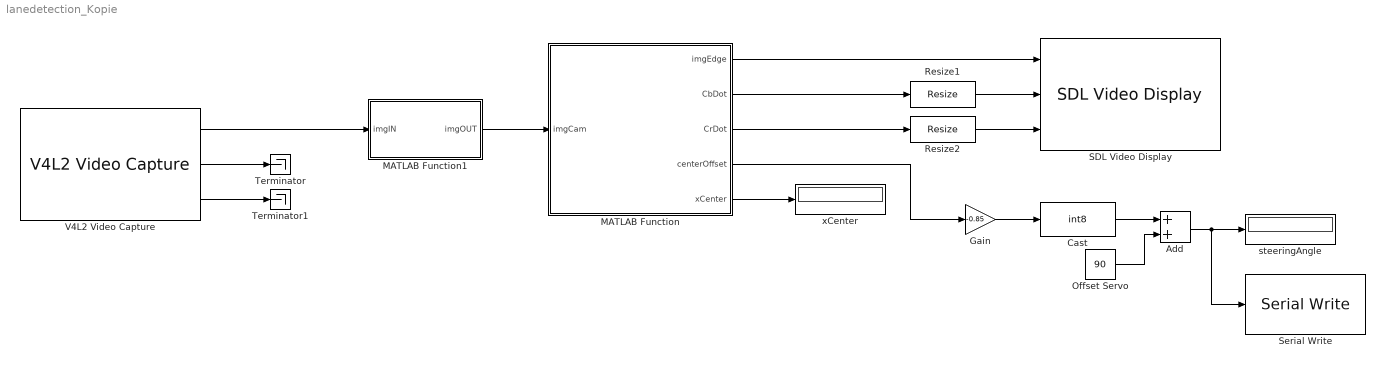
== matlab function lanedetection_Kopie/MATLAB Function1 ==
function imgOUT   = imgROI(imgIN)

    % imgIN Array von 160x120
    % rectangle('Position',[x,y,w,h])
    
    imgOUT = imgIN(1:160,71:100);

end

== matlab function lanedetection_Kopie/MATLAB Function ==
function [imgEdge, CbDot, CrDot, centerOffset, xCenter]  = lanedetection(imgCam)

    threshold = 60;

    % create laplacian filter
    k = [1 2 1; 0 0 0; -1 -2 -1];
    % run sobel
    V = conv2(double(imgCam), k', 'same');
    % filter edges
    imgEdges = uint8((V > threshold) * 255);
    
    % Ab hier für Spurberechnung irrelevant
    
    
    
    % coordinates of all detected objects
    [x, y] = find(imgEdges);
    
    % detect the center of all objects
    xCenter = round(mean(x));
    yCenter = round(mean(y));
    
    % create vector xx and yy for an area around the center of all objects
    xx = max(1, xCenter-2):min(xCenter+2, size(imgEdges, 1));
    yy = max(1, yCenter-2):min(yCenter+2, size(imgEdges, 2));
    
    % create new array with the size of "bw" and fill it with "0"
    bwdot = zeros(size(imgEdges), 'uint8');
    
    % if there is something detected at x and y...
    if ~isempty(x) && ~isempty(y)
        % ...mark the area around the center
        bwdot(xx, yy) = 255;
    % if nothing gets detected...
    else
        bwdot(xx, yy) = 0;
    end
    
    % add the marked area around the center to the array justRed
    imgEdge = imgEdges + bwdot;
    CbDot = bwdot;
    CrDot = bwdot;
    centerOffset = (xCenter - 80);
end

/*
 * Academic License - for use in teaching, academic research, and meeting
 * course requirements at degree granting institutions only.  Not for
 * government, commercial, or other organizational use.
 *
 * File: lanedetection_Kopie.c
 *
 * Code generated for Simulink model 'lanedetection_Kopie'.
 *
 * Model version                  : 1.167
 * Simulink Coder version         : 8.14 (R2018a) 06-Feb-2018
 * C/C++ source code generated on : Fri Apr 12 12:20:22 2019
 *
 * Target selection: ert.tlc
 * Embedded hardware selection: ARM Compatible->ARM Cortex
 * Code generation objectives: Unspecified
 * Validation result: Not run
 */

#include "lanedetection_Kopie.h"
#include "lanedetection_Kopie_private.h"
#include "lanedetection_Kopie_dt.h"

/* Block signals (default storage) */
B_lanedetection_Kopie_T lanedetection_Kopie_B;

/* Block states (default storage) */
DW_lanedetection_Kopie_T lanedetection_Kopie_DW;

/* Real-time model */
RT_MODEL_lanedetection_Kopie_T lanedetection_Kopie_M_;
RT_MODEL_lanedetection_Kopie_T *const lanedetection_Kopie_M =
  &lanedetection_Kopie_M_;

/* Forward declaration for local functions */
static void lanedetection_Kopie_conv2(const real_T a[4800], const real_T b[9],
  real_T c[4800]);
static real_T lanedetection_Kopie_mean(const real_T x_data[], const int32_T
  *x_size);
static void SystemProp_matlabCodegenSetAn_d(codertarget_linux_blocks_SDLV_T *obj,
  boolean_T value);
static void lanedetect_SystemCore_release_d(const
  codertarget_linux_blocks_SDLV_T *obj);
static void lanedetecti_SystemCore_delete_d(const
  codertarget_linux_blocks_SDLV_T *obj);
static void matlabCodegenHandle_matlabCod_d(codertarget_linux_blocks_SDLV_T *obj);
static void SystemProp_matlabCodegenSetAnyP(codertarget_raspi_internal_SC_T *obj,
  boolean_T value);
static void lanedetectio_SystemCore_release(const
  codertarget_raspi_internal_SC_T *obj);
static void lanedetection_SystemCore_delete(const
  codertarget_raspi_internal_SC_T *obj);
static void matlabCodegenHandle_matlabCodeg(codertarget_raspi_internal_SC_T *obj);

/* Function for MATLAB Function: '<Root>/MATLAB Function' */
static void lanedetection_Kopie_conv2(const real_T a[4800], const real_T b[9],
  real_T c[4800])
{
  int32_T lastColA;
  int32_T iC;
  int32_T iA;
  int32_T iB;
  int32_T aidx;
  int32_T cidx;
  int32_T j;
  int32_T k;
  int32_T r;
  memset(&c[0], 0, 4800U * sizeof(real_T));
  for (j = 0; j < 3; j++) {
    if (j + 29 < 30) {
      lastColA = 29;
    } else {
      lastColA = 30 - j;
    }

    for (k = (j < 1); k <= lastColA; k++) {
      iC = j + k;
      if (!(iC > 1)) {
        iC = 1;
      }

      iC = (iC - 1) * 160;
      iA = k * 160;
      iB = j * 3;
      aidx = iA + 1;
      cidx = iC;
      for (r = 1; r < 160; r++) {
        c[cidx] += b[iB] * a[aidx];
        aidx++;
        cidx++;
      }

      iB++;
      aidx = iA;
      cidx = iC;
      for (r = 1; r < 161; r++) {
        c[cidx] += b[iB] * a[aidx];
        aidx++;
        cidx++;
      }

      iB++;
      cidx = iC + 1;
      aidx = iA;
      for (r = 1; r < 160; r++) {
        c[cidx] += b[iB] * a[aidx];
        aidx++;
        cidx++;
      }
    }
  }
}

/* Function for MATLAB Function: '<Root>/MATLAB Function' */
static real_T lanedetection_Kopie_mean(const real_T x_data[], const int32_T
  *x_size)
{
  real_T b_y;
  int32_T k;
  if (*x_size == 0) {
    b_y = 0.0;
  } else {
    b_y = x_data[0];
    for (k = 2; k <= *x_size; k++) {
      b_y += x_data[k - 1];
    }
  }

  return b_y / (real_T)*x_size;
}

real_T rt_roundd_snf(real_T u)
{
  real_T y;
  if (fabs(u) < 4.503599627370496E+15) {
    if (u >= 0.5) {
      y = floor(u + 0.5);
    } else if (u > -0.5) {
      y = u * 0.0;
    } else {
      y = ceil(u - 0.5);
    }
  } else {
    y = u;
  }

  return y;
}

static void SystemProp_matlabCodegenSetAn_d(codertarget_linux_blocks_SDLV_T *obj,
  boolean_T value)
{
  obj->matlabCodegenIsDeleted = value;
}

static void lanedetect_SystemCore_release_d(const
  codertarget_linux_blocks_SDLV_T *obj)
{
  if ((obj->isInitialized == 1) && obj->isSetupComplete) {
    MW_SDL_videoDisplayTerminate(0, 0);
  }
}

static void lanedetecti_SystemCore_delete_d(const
  codertarget_linux_blocks_SDLV_T *obj)
{
  lanedetect_SystemCore_release_d(obj);
}

static void matlabCodegenHandle_matlabCod_d(codertarget_linux_blocks_SDLV_T *obj)
{
  if (!obj->matlabCodegenIsDeleted) {
    SystemProp_matlabCodegenSetAn_d(obj, true);
    lanedetecti_SystemCore_delete_d(obj);
  }
}

static void SystemProp_matlabCodegenSetAnyP(codertarget_raspi_internal_SC_T *obj,
  boolean_T value)
{
  obj->matlabCodegenIsDeleted = value;
}

static void lanedetectio_SystemCore_release(const
  codertarget_raspi_internal_SC_T *obj)
{
  if ((obj->isInitialized == 1) && obj->isSetupComplete) {
    MW_SCI_Close(obj->MW_SCIHANDLE);
  }
}

static void lanedetection_SystemCore_delete(const
  codertarget_raspi_internal_SC_T *obj)
{
  lanedetectio_SystemCore_release(obj);
}

static void matlabCodegenHandle_matlabCodeg(codertarget_raspi_internal_SC_T *obj)
{
  if (!obj->matlabCodegenIsDeleted) {
    SystemProp_matlabCodegenSetAnyP(obj, true);
    lanedetection_SystemCore_delete(obj);
  }
}

/* Model step function */
void lanedetection_Kopie_step(void)
{
  int32_T apnd;
  int32_T cdiff;
  int32_T b_nm1d2;
  int32_T b_k;
  static const real_T f[9] = { 1.0, 2.0, 1.0, 0.0, 0.0, 0.0, -1.0, -2.0, -1.0 };

  uint8_T TxDataLocChar;
  boolean_T exitg1;
  boolean_T guard1 = false;

  /* S-Function (v4l2_video_capture_sfcn): '<Root>/V4L2 Video Capture' */
  MW_videoCaptureOutput(lanedetection_Kopie_ConstP.V4L2VideoCapture_p1,
                        lanedetection_Kopie_B.V4L2VideoCapture_o1,
                        lanedetection_Kopie_B.V4L2VideoCapture_o2,
                        lanedetection_Kopie_B.V4L2VideoCapture_o3);

  /* MATLAB Function: '<Root>/MATLAB Function1' */
  for (apnd = 0; apnd < 30; apnd++) {
    memcpy(&lanedetection_Kopie_B.imgOUT[apnd * 160],
           &lanedetection_Kopie_B.V4L2VideoCapture_o1[apnd * 160 + 11200], 160U *
           sizeof(uint8_T));
  }

  /* End of MATLAB Function: '<Root>/MATLAB Function1' */

  /* MATLAB Function: '<Root>/MATLAB Function' */
  for (apnd = 0; apnd < 4800; apnd++) {
    lanedetection_Kopie_B.rtb_imgOUT_m[apnd] = lanedetection_Kopie_B.imgOUT[apnd];
  }

  lanedetection_Kopie_conv2(lanedetection_Kopie_B.rtb_imgOUT_m, f,
    lanedetection_Kopie_B.dv0);
  for (apnd = 0; apnd < 4800; apnd++) {
    lanedetection_Kopie_B.imgEdge[apnd] = (uint8_T)
      ((lanedetection_Kopie_B.dv0[apnd] > 60.0) * 255U);
  }

  lanedetection_Kopie_B.idx = 0;
  lanedetection_Kopie_B.ii = 1;
  lanedetection_Kopie_B.jj = 1;
  exitg1 = false;
  while ((!exitg1) && (lanedetection_Kopie_B.jj <= 30)) {
    guard1 = false;
    if (lanedetection_Kopie_B.imgEdge[((lanedetection_Kopie_B.jj - 1) * 160 +
         lanedetection_Kopie_B.ii) - 1] != 0) {
      lanedetection_Kopie_B.idx++;
      lanedetection_Kopie_B.i_data[lanedetection_Kopie_B.idx - 1] =
        lanedetection_Kopie_B.ii;
      lanedetection_Kopie_B.j_data[lanedetection_Kopie_B.idx - 1] = (int8_T)
        lanedetection_Kopie_B.jj;
      if (lanedetection_Kopie_B.idx >= 4800) {
        exitg1 = true;
      } else {
        guard1 = true;
      }
    } else {
      guard1 = true;
    }

    if (guard1) {
      lanedetection_Kopie_B.ii++;
      if (lanedetection_Kopie_B.ii > 160) {
        lanedetection_Kopie_B.ii = 1;
        lanedetection_Kopie_B.jj++;
      }
    }
  }

  if (1 > lanedetection_Kopie_B.idx) {
    lanedetection_Kopie_B.idx = 0;
    lanedetection_Kopie_B.ii = 0;
  } else {
    lanedetection_Kopie_B.ii = lanedetection_Kopie_B.idx;
  }

  cdiff = lanedetection_Kopie_B.idx;
  for (apnd = 0; apnd < lanedetection_Kopie_B.idx; apnd++) {
    lanedetection_Kopie_B.x_data[apnd] = lanedetection_Kopie_B.i_data[apnd];
  }

  b_nm1d2 = lanedetection_Kopie_B.ii;
  for (apnd = 0; apnd < lanedetection_Kopie_B.ii; apnd++) {
    lanedetection_Kopie_B.y_data[apnd] = lanedetection_Kopie_B.j_data[apnd];
  }

  lanedetection_Kopie_B.xCenter = rt_roundd_snf(lanedetection_Kopie_mean
    (lanedetection_Kopie_B.x_data, &cdiff));
  lanedetection_Kopie_B.yCenter = rt_roundd_snf(lanedetection_Kopie_mean
    (lanedetection_Kopie_B.y_data, &b_nm1d2));
  if ((1.0 > lanedetection_Kopie_B.xCenter - 2.0) || rtIsNaN
      (lanedetection_Kopie_B.xCenter - 2.0)) {
    lanedetection_Kopie_B.maxval = 1.0;
  } else {
    lanedetection_Kopie_B.maxval = lanedetection_Kopie_B.xCenter - 2.0;
  }

  if (lanedetection_Kopie_B.xCenter + 2.0 < 160.0) {
    lanedetection_Kopie_B.minval = lanedetection_Kopie_B.xCenter + 2.0;
  } else {
    lanedetection_Kopie_B.minval = 160.0;
  }

  if (lanedetection_Kopie_B.minval < lanedetection_Kopie_B.maxval) {
    lanedetection_Kopie_B.jj = 0;
  } else if (lanedetection_Kopie_B.maxval == lanedetection_Kopie_B.maxval) {
    cdiff = (int32_T)((real32_T)lanedetection_Kopie_B.minval - (real32_T)
                      lanedetection_Kopie_B.maxval);
    lanedetection_Kopie_B.jj = cdiff + 1;
    for (apnd = 0; apnd <= cdiff; apnd++) {
      lanedetection_Kopie_B.xx_data[apnd] = lanedetection_Kopie_B.maxval +
        (real_T)apnd;
    }
  } else {
    lanedetection_Kopie_B.jj = (int32_T)floor((lanedetection_Kopie_B.minval -
      lanedetection_Kopie_B.maxval) + 0.5);
    apnd = (int32_T)lanedetection_Kopie_B.maxval + lanedetection_Kopie_B.jj;
    cdiff = apnd - (int32_T)lanedetection_Kopie_B.minval;
    if ((int32_T)lanedetection_Kopie_B.maxval > (int32_T)
        lanedetection_Kopie_B.minval) {
      lanedetection_Kopie_B.nm1d2 = (int32_T)lanedetection_Kopie_B.maxval;
    } else {
      lanedetection_Kopie_B.nm1d2 = (int32_T)lanedetection_Kopie_B.minval;
    }

    if (fabs((real_T)cdiff) < 4.4408920985006262E-16 * (real_T)
        lanedetection_Kopie_B.nm1d2) {
      lanedetection_Kopie_B.jj++;
      apnd = (int32_T)lanedetection_Kopie_B.minval;
    } else if (cdiff > 0) {
      apnd = ((int32_T)lanedetection_Kopie_B.maxval + lanedetection_Kopie_B.jj)
        - 1;
    } else {
      lanedetection_Kopie_B.jj++;
    }

    if (lanedetection_Kopie_B.jj >= 0) {
      cdiff = lanedetection_Kopie_B.jj - 1;
    } else {
      cdiff = -1;
    }

    lanedetection_Kopie_B.jj = cdiff + 1;
    if (cdiff + 1 > 0) {
      lanedetection_Kopie_B.xx_data[0] = lanedetection_Kopie_B.maxval;
      if (cdiff + 1 > 1) {
        lanedetection_Kopie_B.xx_data[cdiff] = apnd;
        lanedetection_Kopie_B.nm1d2 = cdiff / 2;
        for (b_nm1d2 = 1; b_nm1d2 < lanedetection_Kopie_B.nm1d2; b_nm1d2++) {
          lanedetection_Kopie_B.xx_data[b_nm1d2] = lanedetection_Kopie_B.maxval
            + (real_T)b_nm1d2;
          lanedetection_Kopie_B.xx_data[cdiff - b_nm1d2] = apnd - b_nm1d2;
        }

        if (lanedetection_Kopie_B.nm1d2 << 1 == cdiff) {
          lanedetection_Kopie_B.xx_data[lanedetection_Kopie_B.nm1d2] =
            (lanedetection_Kopie_B.maxval + (real_T)apnd) / 2.0;
        } else {
          lanedetection_Kopie_B.xx_data[lanedetection_Kopie_B.nm1d2] =
            lanedetection_Kopie_B.maxval + (real_T)lanedetection_Kopie_B.nm1d2;
          lanedetection_Kopie_B.xx_data[lanedetection_Kopie_B.nm1d2 + 1] = apnd
            - lanedetection_Kopie_B.nm1d2;
        }
      }
    }
  }

  if ((1.0 > lanedetection_Kopie_B.yCenter - 2.0) || rtIsNaN
      (lanedetection_Kopie_B.yCenter - 2.0)) {
    lanedetection_Kopie_B.maxval = 1.0;
  } else {
    lanedetection_Kopie_B.maxval = lanedetection_Kopie_B.yCenter - 2.0;
  }

  if (lanedetection_Kopie_B.yCenter + 2.0 < 30.0) {
    lanedetection_Kopie_B.yCenter += 2.0;
  } else {
    lanedetection_Kopie_B.yCenter = 30.0;
  }

  if (lanedetection_Kopie_B.yCenter < lanedetection_Kopie_B.maxval) {
    lanedetection_Kopie_B.nm1d2 = 0;
  } else if (lanedetection_Kopie_B.maxval == lanedetection_Kopie_B.maxval) {
    cdiff = (int32_T)((real32_T)lanedetection_Kopie_B.yCenter - (real32_T)
                      lanedetection_Kopie_B.maxval);
    lanedetection_Kopie_B.nm1d2 = cdiff + 1;
    for (apnd = 0; apnd <= cdiff; apnd++) {
      lanedetection_Kopie_B.b_y_data[apnd] = lanedetection_Kopie_B.maxval +
        (real_T)apnd;
    }
  } else {
    apnd = (int32_T)floor((lanedetection_Kopie_B.yCenter -
      lanedetection_Kopie_B.maxval) + 0.5);
    cdiff = (int32_T)lanedetection_Kopie_B.maxval + apnd;
    lanedetection_Kopie_B.nm1d2 = cdiff - (int32_T)lanedetection_Kopie_B.yCenter;
    if ((int32_T)lanedetection_Kopie_B.maxval > (int32_T)
        lanedetection_Kopie_B.yCenter) {
      b_nm1d2 = (int32_T)lanedetection_Kopie_B.maxval;
    } else {
      b_nm1d2 = (int32_T)lanedetection_Kopie_B.yCenter;
    }

    if (fabs((real_T)lanedetection_Kopie_B.nm1d2) < 4.4408920985006262E-16 *
        (real_T)b_nm1d2) {
      apnd++;
      cdiff = (int32_T)lanedetection_Kopie_B.yCenter;
    } else if (lanedetection_Kopie_B.nm1d2 > 0) {
      cdiff = ((int32_T)lanedetection_Kopie_B.maxval + apnd) - 1;
    } else {
      apnd++;
    }

    if (apnd >= 0) {
      apnd--;
    } else {
      apnd = -1;
    }

    lanedetection_Kopie_B.nm1d2 = apnd + 1;
    if (apnd + 1 > 0) {
      lanedetection_Kopie_B.b_y_data[0] = lanedetection_Kopie_B.maxval;
      if (apnd + 1 > 1) {
        lanedetection_Kopie_B.b_y_data[apnd] = cdiff;
        b_nm1d2 = apnd / 2;
        for (b_k = 1; b_k < b_nm1d2; b_k++) {
          lanedetection_Kopie_B.b_y_data[b_k] = lanedetection_Kopie_B.maxval +
            (real_T)b_k;
          lanedetection_Kopie_B.b_y_data[apnd - b_k] = cdiff - b_k;
        }

        if (b_nm1d2 << 1 == apnd) {
          lanedetection_Kopie_B.b_y_data[b_nm1d2] =
            (lanedetection_Kopie_B.maxval + (real_T)cdiff) / 2.0;
        } else {
          lanedetection_Kopie_B.b_y_data[b_nm1d2] = lanedetection_Kopie_B.maxval
            + (real_T)b_nm1d2;
          lanedetection_Kopie_B.b_y_data[b_nm1d2 + 1] = cdiff - b_nm1d2;
        }
      }
    }
  }

  memset(&lanedetection_Kopie_B.imgOUT[0], 0, 4800U * sizeof(uint8_T));
  if ((!(lanedetection_Kopie_B.idx == 0)) && (!(lanedetection_Kopie_B.ii == 0)))
  {
    for (apnd = 0; apnd < lanedetection_Kopie_B.jj; apnd++) {
      lanedetection_Kopie_B.b_data[apnd] = (int32_T)
        lanedetection_Kopie_B.xx_data[apnd];
    }

    for (apnd = 0; apnd < lanedetection_Kopie_B.nm1d2; apnd++) {
      lanedetection_Kopie_B.c_data[apnd] = (int32_T)
        lanedetection_Kopie_B.b_y_data[apnd];
    }

    for (apnd = 0; apnd < lanedetection_Kopie_B.nm1d2; apnd++) {
      for (lanedetection_Kopie_B.idx = 0; lanedetection_Kopie_B.idx <
           lanedetection_Kopie_B.jj; lanedetection_Kopie_B.idx++) {
        lanedetection_Kopie_B.imgOUT
          [(lanedetection_Kopie_B.b_data[lanedetection_Kopie_B.idx] + 160 *
            (lanedetection_Kopie_B.c_data[apnd] - 1)) - 1] = MAX_uint8_T;
      }
    }
  } else {
    for (apnd = 0; apnd < lanedetection_Kopie_B.jj; apnd++) {
      lanedetection_Kopie_B.b_data[apnd] = (int32_T)
        lanedetection_Kopie_B.xx_data[apnd];
    }

    for (apnd = 0; apnd < lanedetection_Kopie_B.nm1d2; apnd++) {
      lanedetection_Kopie_B.c_data[apnd] = (int32_T)
        lanedetection_Kopie_B.b_y_data[apnd];
    }

    for (apnd = 0; apnd < lanedetection_Kopie_B.nm1d2; apnd++) {
      for (lanedetection_Kopie_B.idx = 0; lanedetection_Kopie_B.idx <
           lanedetection_Kopie_B.jj; lanedetection_Kopie_B.idx++) {
        lanedetection_Kopie_B.imgOUT
          [(lanedetection_Kopie_B.b_data[lanedetection_Kopie_B.idx] + 160 *
            (lanedetection_Kopie_B.c_data[apnd] - 1)) - 1] = 0U;
      }
    }
  }

  for (apnd = 0; apnd < 4800; apnd++) {
    lanedetection_Kopie_B.idx = (int32_T)((uint32_T)
      lanedetection_Kopie_B.imgEdge[apnd] + lanedetection_Kopie_B.imgOUT[apnd]);
    if ((uint32_T)lanedetection_Kopie_B.idx > 255U) {
      lanedetection_Kopie_B.idx = 255;
    }

    lanedetection_Kopie_B.imgEdge[apnd] = (uint8_T)lanedetection_Kopie_B.idx;
  }

  /* S-Function (svipresize): '<Root>/Resize1' */
  /* use pre-computed weights and index table to perform interpolation */
  lanedetection_Kopie_B.idx = 0;

  /* resize along X-axis direction */
  for (lanedetection_Kopie_B.ii = 0; lanedetection_Kopie_B.ii < 160;
       lanedetection_Kopie_B.ii++) {
    apnd = lanedetection_Kopie_B.ii;
    for (cdiff = 0; cdiff < 30; cdiff++) {
      lanedetection_Kopie_B.jj = (lanedetection_Kopie_B.imgOUT[cdiff * 160 +
        lanedetection_Kopie_B.ii] * 127) << 3;
      lanedetection_Kopie_DW.Resize1_IntBuffer[apnd] = (uint8_T)
        (((lanedetection_Kopie_B.jj & 512U) != 0U) + (lanedetection_Kopie_B.jj >>
          10));
      apnd += 160;
    }
  }

  /* resize along Y-axis direction */
  for (cdiff = 0; cdiff < 30; cdiff++) {
    apnd = cdiff * 160;
    for (lanedetection_Kopie_B.ii = 0; lanedetection_Kopie_B.ii < 160;
         lanedetection_Kopie_B.ii++) {
      lanedetection_Kopie_DW.Resize1_LineBuffer[lanedetection_Kopie_B.ii] =
        lanedetection_Kopie_DW.Resize1_IntBuffer[apnd];
      apnd++;
    }

    for (lanedetection_Kopie_B.ii = 0; lanedetection_Kopie_B.ii < 80;
         lanedetection_Kopie_B.ii++) {
      lanedetection_Kopie_B.jj =
        (lanedetection_Kopie_DW.Resize1_LineBuffer[lanedetection_Kopie_ConstP.pooled2
         [lanedetection_Kopie_B.ii]] *
         lanedetection_Kopie_ConstP.pooled5[lanedetection_Kopie_B.ii]) << 3;
      apnd = lanedetection_Kopie_B.ii + 80;
      lanedetection_Kopie_B.nm1d2 =
        (lanedetection_Kopie_DW.Resize1_LineBuffer[lanedetection_Kopie_ConstP.pooled2
         [apnd]] * lanedetection_Kopie_ConstP.pooled5[apnd]) << 3;
      if ((lanedetection_Kopie_B.jj < 0) && (lanedetection_Kopie_B.nm1d2 <
           MIN_int32_T - lanedetection_Kopie_B.jj)) {
        lanedetection_Kopie_B.jj = MIN_int32_T;
      } else if ((lanedetection_Kopie_B.jj > 0) && (lanedetection_Kopie_B.nm1d2 >
                  MAX_int32_T - lanedetection_Kopie_B.jj)) {
        lanedetection_Kopie_B.jj = MAX_int32_T;
      } else {
        lanedetection_Kopie_B.jj += lanedetection_Kopie_B.nm1d2;
      }

      apnd += 80;
      lanedetection_Kopie_B.nm1d2 =
        (lanedetection_Kopie_DW.Resize1_LineBuffer[lanedetection_Kopie_ConstP.pooled2
         [apnd]] * lanedetection_Kopie_ConstP.pooled5[apnd]) << 3;
      if ((lanedetection_Kopie_B.jj < 0) && (lanedetection_Kopie_B.nm1d2 <
           MIN_int32_T - lanedetection_Kopie_B.jj)) {
        lanedetection_Kopie_B.jj = MIN_int32_T;
      } else if ((lanedetection_Kopie_B.jj > 0) && (lanedetection_Kopie_B.nm1d2 >
                  MAX_int32_T - lanedetection_Kopie_B.jj)) {
        lanedetection_Kopie_B.jj = MAX_int32_T;
      } else {
        lanedetection_Kopie_B.jj += lanedetection_Kopie_B.nm1d2;
      }

      apnd += 80;
      lanedetection_Kopie_B.nm1d2 =
        (lanedetection_Kopie_DW.Resize1_LineBuffer[lanedetection_Kopie_ConstP.pooled2
         [apnd]] * lanedetection_Kopie_ConstP.pooled5[apnd]) << 3;
      if ((lanedetection_Kopie_B.jj < 0) && (lanedetection_Kopie_B.nm1d2 <
           MIN_int32_T - lanedetection_Kopie_B.jj)) {
        lanedetection_Kopie_B.jj = MIN_int32_T;
      } else if ((lanedetection_Kopie_B.jj > 0) && (lanedetection_Kopie_B.nm1d2 >
                  MAX_int32_T - lanedetection_Kopie_B.jj)) {
        lanedetection_Kopie_B.jj = MAX_int32_T;
      } else {
        lanedetection_Kopie_B.jj += lanedetection_Kopie_B.nm1d2;
      }

      apnd = ((lanedetection_Kopie_B.jj & 512U) != 0U) +
        (lanedetection_Kopie_B.jj >> 10);
      if (apnd < 0) {
        apnd = 0;
      } else {
        if (apnd > 255) {
          apnd = 255;
        }
      }

      lanedetection_Kopie_B.Resize1[lanedetection_Kopie_B.idx] = (uint8_T)apnd;
      lanedetection_Kopie_B.idx++;
    }
  }

  /* End of S-Function (svipresize): '<Root>/Resize1' */

  /* S-Function (svipresize): '<Root>/Resize2' incorporates:
   *  MATLAB Function: '<Root>/MATLAB Function'
   */
  /* use pre-computed weights and index table to perform interpolation */
  lanedetection_Kopie_B.idx = 0;

  /* resize along X-axis direction */
  for (lanedetection_Kopie_B.ii = 0; lanedetection_Kopie_B.ii < 160;
       lanedetection_Kopie_B.ii++) {
    apnd = lanedetection_Kopie_B.ii;
    for (cdiff = 0; cdiff < 30; cdiff++) {
      lanedetection_Kopie_B.jj = (lanedetection_Kopie_B.imgOUT[cdiff * 160 +
        lanedetection_Kopie_B.ii] * 127) << 3;
      lanedetection_Kopie_DW.Resize2_IntBuffer[apnd] = (uint8_T)
        (((lanedetection_Kopie_B.jj & 512U) != 0U) + (lanedetection_Kopie_B.jj >>
          10));
      apnd += 160;
    }
  }

  /* resize along Y-axis direction */
  for (cdiff = 0; cdiff < 30; cdiff++) {
    apnd = cdiff * 160;
    for (lanedetection_Kopie_B.ii = 0; lanedetection_Kopie_B.ii < 160;
         lanedetection_Kopie_B.ii++) {
      lanedetection_Kopie_DW.Resize1_LineBuffer[lanedetection_Kopie_B.ii] =
        lanedetection_Kopie_DW.Resize2_IntBuffer[apnd];
      apnd++;
    }

    for (lanedetection_Kopie_B.ii = 0; lanedetection_Kopie_B.ii < 80;
         lanedetection_Kopie_B.ii++) {
      lanedetection_Kopie_B.jj =
        (lanedetection_Kopie_DW.Resize1_LineBuffer[lanedetection_Kopie_ConstP.pooled2
         [lanedetection_Kopie_B.ii]] *
         lanedetection_Kopie_ConstP.pooled5[lanedetection_Kopie_B.ii]) << 3;
      apnd = lanedetection_Kopie_B.ii + 80;
      lanedetection_Kopie_B.nm1d2 =
        (lanedetection_Kopie_DW.Resize1_LineBuffer[lanedetection_Kopie_ConstP.pooled2
         [apnd]] * lanedetection_Kopie_ConstP.pooled5[apnd]) << 3;
      if ((lanedetection_Kopie_B.jj < 0) && (lanedetection_Kopie_B.nm1d2 <
           MIN_int32_T - lanedetection_Kopie_B.jj)) {
        lanedetection_Kopie_B.jj = MIN_int32_T;
      } else if ((lanedetection_Kopie_B.jj > 0) && (lanedetection_Kopie_B.nm1d2 >
                  MAX_int32_T - lanedetection_Kopie_B.jj)) {
        lanedetection_Kopie_B.jj = MAX_int32_T;
      } else {
        lanedetection_Kopie_B.jj += lanedetection_Kopie_B.nm1d2;
      }

      apnd += 80;
      lanedetection_Kopie_B.nm1d2 =
        (lanedetection_Kopie_DW.Resize1_LineBuffer[lanedetection_Kopie_ConstP.pooled2
         [apnd]] * lanedetection_Kopie_ConstP.pooled5[apnd]) << 3;
      if ((lanedetection_Kopie_B.jj < 0) && (lanedetection_Kopie_B.nm1d2 <
           MIN_int32_T - lanedetection_Kopie_B.jj)) {
        lanedetection_Kopie_B.jj = MIN_int32_T;
      } else if ((lanedetection_Kopie_B.jj > 0) && (lanedetection_Kopie_B.nm1d2 >
                  MAX_int32_T - lanedetection_Kopie_B.jj)) {
        lanedetection_Kopie_B.jj = MAX_int32_T;
      } else {
        lanedetection_Kopie_B.jj += lanedetection_Kopie_B.nm1d2;
      }

      apnd += 80;
      lanedetection_Kopie_B.nm1d2 =
        (lanedetection_Kopie_DW.Resize1_LineBuffer[lanedetection_Kopie_ConstP.pooled2
         [apnd]] * lanedetection_Kopie_ConstP.pooled5[apnd]) << 3;
      if ((lanedetection_Kopie_B.jj < 0) && (lanedetection_Kopie_B.nm1d2 <
           MIN_int32_T - lanedetection_Kopie_B.jj)) {
        lanedetection_Kopie_B.jj = MIN_int32_T;
      } else if ((lanedetection_Kopie_B.jj > 0) && (lanedetection_Kopie_B.nm1d2 >
                  MAX_int32_T - lanedetection_Kopie_B.jj)) {
        lanedetection_Kopie_B.jj = MAX_int32_T;
      } else {
        lanedetection_Kopie_B.jj += lanedetection_Kopie_B.nm1d2;
      }

      apnd = ((lanedetection_Kopie_B.jj & 512U) != 0U) +
        (lanedetection_Kopie_B.jj >> 10);
      if (apnd < 0) {
        apnd = 0;
      } else {
        if (apnd > 255) {
          apnd = 255;
        }
      }

      lanedetection_Kopie_B.Resize2[lanedetection_Kopie_B.idx] = (uint8_T)apnd;
      lanedetection_Kopie_B.idx++;
    }
  }

  /* End of S-Function (svipresize): '<Root>/Resize2' */
  /* MATLABSystem: '<S3>/MATLAB System' */
  memcpy(&lanedetection_Kopie_DW.Resize2_IntBuffer[0],
         &lanedetection_Kopie_B.imgEdge[0], 4800U * sizeof(uint8_T));
  memcpy(&lanedetection_Kopie_B.pln2[0], &lanedetection_Kopie_B.Resize1[0],
         2400U * sizeof(uint8_T));
  memcpy(&lanedetection_Kopie_B.pln3[0], &lanedetection_Kopie_B.Resize2[0],
         2400U * sizeof(uint8_T));
  MW_SDL_videoDisplayOutput(lanedetection_Kopie_DW.Resize2_IntBuffer,
    lanedetection_Kopie_B.pln2, lanedetection_Kopie_B.pln3);

  /* DataTypeConversion: '<Root>/Cast' incorporates:
   *  Gain: '<Root>/Gain'
   *  MATLAB Function: '<Root>/MATLAB Function'
   */
  lanedetection_Kopie_B.yCenter = floor((lanedetection_Kopie_B.xCenter - 80.0) *
    lanedetection_Kopie_P.Gain_Gain);
  if (rtIsNaN(lanedetection_Kopie_B.yCenter) || rtIsInf
      (lanedetection_Kopie_B.yCenter)) {
    lanedetection_Kopie_B.yCenter = 0.0;
  } else {
    lanedetection_Kopie_B.yCenter = fmod(lanedetection_Kopie_B.yCenter, 256.0);
  }

  /* Sum: '<Root>/Add' incorporates:
   *  Constant: '<Root>/Offset Servo'
   *  DataTypeConversion: '<Root>/Cast'
   */
  lanedetection_Kopie_B.Add = (int8_T)((lanedetection_Kopie_B.yCenter < 0.0 ?
    (int32_T)(int8_T)-(int8_T)(uint8_T)-lanedetection_Kopie_B.yCenter : (int32_T)
    (int8_T)(uint8_T)lanedetection_Kopie_B.yCenter) +
    lanedetection_Kopie_P.OffsetServo_Value);

  /* MATLABSystem: '<Root>/Serial Write' */
  memcpy((void *)&TxDataLocChar, (void *)&lanedetection_Kopie_B.Add, (uint32_T)
         ((size_t)1 * sizeof(uint8_T)));
  MW_SCI_Transmit(lanedetection_Kopie_DW.obj_n.MW_SCIHANDLE, &TxDataLocChar, 1U);

  /* External mode */
  rtExtModeUploadCheckTrigger(1);

  {                                    /* Sample time: [0.011111111111111112s, 0.0s] */
    rtExtModeUpload(0, lanedetection_Kopie_M->Timing.taskTime0);
  }

  /* signal main to stop simulation */
  {                                    /* Sample time: [0.011111111111111112s, 0.0s] */
    if ((rtmGetTFinal(lanedetection_Kopie_M)!=-1) &&
        !((rtmGetTFinal(lanedetection_Kopie_M)-
           lanedetection_Kopie_M->Timing.taskTime0) >
          lanedetection_Kopie_M->Timing.taskTime0 * (DBL_EPSILON))) {
      rtmSetErrorStatus(lanedetection_Kopie_M, "Simulation finished");
    }

    if (rtmGetStopRequested(lanedetection_Kopie_M)) {
      rtmSetErrorStatus(lanedetection_Kopie_M, "Simulation finished");
    }
  }

  /* Update absolute time for base rate */
  /* The "clockTick0" counts the number of times the code of this task has
   * been executed. The absolute time is the multiplication of "clockTick0"
   * and "Timing.stepSize0". Size of "clockTick0" ensures timer will not
   * overflow during the application lifespan selected.
   */
  lanedetection_Kopie_M->Timing.taskTime0 =
    (++lanedetection_Kopie_M->Timing.clockTick0) *
    lanedetection_Kopie_M->Timing.stepSize0;
}
